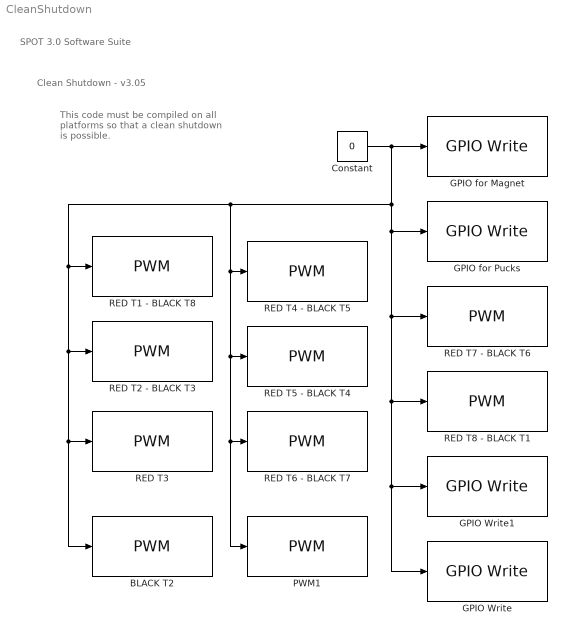
//
//  CleanShutdown.cpp
//
//  Academic License - for use in teaching, academic research, and meeting
//  course requirements at degree granting institutions only.  Not for
//  government, commercial, or other organizational use.
//
//  Code generation for model "CleanShutdown".
//
//  Model version              : 1.164
//  Simulink Coder version : 9.3 (R2020a) 18-Nov-2019
//  C++ source code generated on : Thu Mar 10 11:30:43 2022
//
//  Target selection: ert.tlc
//  Embedded hardware selection: ARM Compatible->ARM Cortex
//  Code generation objective: Execution efficiency
//  Validation result: Not run


#include "CleanShutdown.h"
#include "CleanShutdown_private.h"

// Block states (default storage)
DW_CleanShutdown_T CleanShutdown_DW;

// Real-time model
RT_MODEL_CleanShutdown_T CleanShutdown_M_ = RT_MODEL_CleanShutdown_T();
RT_MODEL_CleanShutdown_T *const CleanShutdown_M = &CleanShutdown_M_;

// Forward declaration for local functions
static void CleanShutdow_SystemCore_release(const
  raspi_internal_PWMBlock_Clean_T *obj);
static void CleanShutdown_SystemCore_delete(const
  raspi_internal_PWMBlock_Clean_T *obj);
static void matlabCodegenHandle_matlabCodeg(raspi_internal_PWMBlock_Clean_T *obj);
static void C_SystemCore_release_gx21kozvdu(const
  codertarget_linux_blocks_Digi_T *obj);
static void Cl_SystemCore_delete_gx21kozvdu(const
  codertarget_linux_blocks_Digi_T *obj);
static void matlabCodegenHandle__gx21kozvdu(codertarget_linux_blocks_Digi_T *obj);
static void SystemCore_release_gx21kozvdug(const codertarget_linux_blocks_Digi_T
  *obj);
static void C_SystemCore_delete_gx21kozvdug(const
  codertarget_linux_blocks_Digi_T *obj);
static void matlabCodegenHandle_gx21kozvdug(codertarget_linux_blocks_Digi_T *obj);
static void SystemCore_release_gx21kozvdugn(const
  codertarget_linux_blocks_Digi_T *obj);
static void SystemCore_delete_gx21kozvdugn(const codertarget_linux_blocks_Digi_T
  *obj);
static void matlabCodegenHandl_gx21kozvdugn(codertarget_linux_blocks_Digi_T *obj);
static void SystemCore_releas_gx21kozvdugn1(const
  codertarget_linux_blocks_Digi_T *obj);
static void SystemCore_delete_gx21kozvdugn1(const
  codertarget_linux_blocks_Digi_T *obj);
static void matlabCodegenHand_gx21kozvdugn1(codertarget_linux_blocks_Digi_T *obj);
real_T rt_roundd_snf(real_T u)
{
  real_T y;
  if (fabs(u) < 4.503599627370496E+15) {
    if (u >= 0.5) {
      y = floor(u + 0.5);
    } else if (u > -0.5) {
      y = u * 0.0;
    } else {
      y = ceil(u - 0.5);
    }
  } else {
    y = u;
  }

  return y;
}

static void CleanShutdow_SystemCore_release(const
  raspi_internal_PWMBlock_Clean_T *obj)
{
  if ((obj->isInitialized == 1) && obj->isSetupComplete) {
    EXT_PWMBlock_terminate(obj->PinNumber);
  }
}

static void CleanShutdown_SystemCore_delete(const
  raspi_internal_PWMBlock_Clean_T *obj)
{
  CleanShutdow_SystemCore_release(obj);
}

static void matlabCodegenHandle_matlabCodeg(raspi_internal_PWMBlock_Clean_T *obj)
{
  if (!obj->matlabCodegenIsDeleted) {
    obj->matlabCodegenIsDeleted = true;
    CleanShutdown_SystemCore_delete(obj);
  }
}

static void C_SystemCore_release_gx21kozvdu(const
  codertarget_linux_blocks_Digi_T *obj)
{
  if ((obj->isInitialized == 1) && obj->isSetupComplete) {
    MW_gpioTerminate(21U);
  }
}

static void Cl_SystemCore_delete_gx21kozvdu(const
  codertarget_linux_blocks_Digi_T *obj)
{
  C_SystemCore_release_gx21kozvdu(obj);
}

static void matlabCodegenHandle__gx21kozvdu(codertarget_linux_blocks_Digi_T *obj)
{
  if (!obj->matlabCodegenIsDeleted) {
    obj->matlabCodegenIsDeleted = true;
    Cl_SystemCore_delete_gx21kozvdu(obj);
  }
}

static void SystemCore_release_gx21kozvdug(const codertarget_linux_blocks_Digi_T
  *obj)
{
  if ((obj->isInitialized == 1) && obj->isSetupComplete) {
    MW_gpioTerminate(25U);
  }
}

static void C_SystemCore_delete_gx21kozvdug(const
  codertarget_linux_blocks_Digi_T *obj)
{
  SystemCore_release_gx21kozvdug(obj);
}

static void matlabCodegenHandle_gx21kozvdug(codertarget_linux_blocks_Digi_T *obj)
{
  if (!obj->matlabCodegenIsDeleted) {
    obj->matlabCodegenIsDeleted = true;
    C_SystemCore_delete_gx21kozvdug(obj);
  }
}

static void SystemCore_release_gx21kozvdugn(const
  codertarget_linux_blocks_Digi_T *obj)
{
  if ((obj->isInitialized == 1) && obj->isSetupComplete) {
    MW_gpioTerminate(10U);
  }
}

static void SystemCore_delete_gx21kozvdugn(const codertarget_linux_blocks_Digi_T
  *obj)
{
  SystemCore_release_gx21kozvdugn(obj);
}

static void matlabCodegenHandl_gx21kozvdugn(codertarget_linux_blocks_Digi_T *obj)
{
  if (!obj->matlabCodegenIsDeleted) {
    obj->matlabCodegenIsDeleted = true;
    SystemCore_delete_gx21kozvdugn(obj);
  }
}

static void SystemCore_releas_gx21kozvdugn1(const
  codertarget_linux_blocks_Digi_T *obj)
{
  if ((obj->isInitialized == 1) && obj->isSetupComplete) {
    MW_gpioTerminate(26U);
  }
}

static void SystemCore_delete_gx21kozvdugn1(const
  codertarget_linux_blocks_Digi_T *obj)
{
  SystemCore_releas_gx21kozvdugn1(obj);
}

static void matlabCodegenHand_gx21kozvdugn1(codertarget_linux_blocks_Digi_T *obj)
{
  if (!obj->matlabCodegenIsDeleted) {
    obj->matlabCodegenIsDeleted = true;
    SystemCore_delete_gx21kozvdugn1(obj);
  }
}

// Model step function
void CleanShutdown_step(void)
{
  real_T y;
  uint8_T tmp;

  // MATLABSystem: '<Root>/BLACK T2' incorporates:
  //   Constant: '<Root>/Constant'

  if (CleanShutdown_P.Constant_Value < 1.0) {
    y = CleanShutdown_P.Constant_Value;
  } else {
    y = 1.0;
  }

  if (!(y > 0.0)) {
    y = 0.0;
  }

  EXT_PWMBlock_setDutyCycle(CleanShutdown_DW.obj.PinNumber, y);

  // End of MATLABSystem: '<Root>/BLACK T2'

  // MATLABSystem: '<S1>/Digital Write' incorporates:
  //   Constant: '<Root>/Constant'
  //   MATLABSystem: '<S2>/Digital Write'
  //   MATLABSystem: '<S3>/Digital Write'
  //   MATLABSystem: '<S4>/Digital Write'

  y = rt_roundd_snf(CleanShutdown_P.Constant_Value);
  if (y < 256.0) {
    if (y >= 0.0) {
      tmp = static_cast<uint8_T>(y);
    } else {
      tmp = 0U;
    }
  } else {
    tmp = MAX_uint8_T;
  }

  MW_gpioWrite(21U, tmp);

  // End of MATLABSystem: '<S1>/Digital Write'

  // MATLABSystem: '<S2>/Digital Write'
  if (y < 256.0) {
    if (y >= 0.0) {
      tmp = static_cast<uint8_T>(y);
    } else {
      tmp = 0U;
    }
  } else {
    tmp = MAX_uint8_T;
  }

  MW_gpioWrite(25U, tmp);

  // MATLABSystem: '<S3>/Digital Write'
  if (y < 256.0) {
    if (y >= 0.0) {
      tmp = static_cast<uint8_T>(y);
    } else {
      tmp = 0U;
    }
  } else {
    tmp = MAX_uint8_T;
  }

  MW_gpioWrite(10U, tmp);

  // MATLABSystem: '<S4>/Digital Write'
  if (y < 256.0) {
    if (y >= 0.0) {
      tmp = static_cast<uint8_T>(y);
    } else {
      tmp = 0U;
    }
  } else {
    tmp = MAX_uint8_T;
  }

  MW_gpioWrite(26U, tmp);

  // MATLABSystem: '<Root>/PWM1' incorporates:
  //   Constant: '<Root>/Constant'

  if (CleanShutdown_P.Constant_Value < 1.0) {
    y = CleanShutdown_P.Constant_Value;
  } else {
    y = 1.0;
  }

  if (!(y > 0.0)) {
    y = 0.0;
  }

  EXT_PWMBlock_setDutyCycle(CleanShutdown_DW.obj_i.PinNumber, y);

  // End of MATLABSystem: '<Root>/PWM1'

  // MATLABSystem: '<Root>/RED T1 - BLACK T8' incorporates:
  //   Constant: '<Root>/Constant'

  if (CleanShutdown_P.Constant_Value < 1.0) {
    y = CleanShutdown_P.Constant_Value;
  } else {
    y = 1.0;
  }

  if (!(y > 0.0)) {
    y = 0.0;
  }

  EXT_PWMBlock_setDutyCycle(CleanShutdown_DW.obj_e.PinNumber, y);

  // End of MATLABSystem: '<Root>/RED T1 - BLACK T8'

  // MATLABSystem: '<Root>/RED T2 - BLACK T3' incorporates:
  //   Constant: '<Root>/Constant'

  if (CleanShutdown_P.Constant_Value < 1.0) {
    y = CleanShutdown_P.Constant_Value;
  } else {
    y = 1.0;
  }

  if (!(y > 0.0)) {
    y = 0.0;
  }

  EXT_PWMBlock_setDutyCycle(CleanShutdown_DW.obj_i5.PinNumber, y);

  // End of MATLABSystem: '<Root>/RED T2 - BLACK T3'

  // MATLABSystem: '<Root>/RED T3' incorporates:
  //   Constant: '<Root>/Constant'

  if (CleanShutdown_P.Constant_Value < 1.0) {
    y = CleanShutdown_P.Constant_Value;
  } else {
    y = 1.0;
  }

  if (!(y > 0.0)) {
    y = 0.0;
  }

  EXT_PWMBlock_setDutyCycle(CleanShutdown_DW.obj_b.PinNumber, y);

  // End of MATLABSystem: '<Root>/RED T3'

  // MATLABSystem: '<Root>/RED T4 - BLACK T5' incorporates:
  //   Constant: '<Root>/Constant'

  if (CleanShutdown_P.Constant_Value < 1.0) {
    y = CleanShutdown_P.Constant_Value;
  } else {
    y = 1.0;
  }

  if (!(y > 0.0)) {
    y = 0.0;
  }

  EXT_PWMBlock_setDutyCycle(CleanShutdown_DW.obj_d.PinNumber, y);

  // End of MATLABSystem: '<Root>/RED T4 - BLACK T5'

  // MATLABSystem: '<Root>/RED T5 - BLACK T4' incorporates:
  //   Constant: '<Root>/Constant'

  if (CleanShutdown_P.Constant_Value < 1.0) {
    y = CleanShutdown_P.Constant_Value;
  } else {
    y = 1.0;
  }

  if (!(y > 0.0)) {
    y = 0.0;
  }

  EXT_PWMBlock_setDutyCycle(CleanShutdown_DW.obj_f.PinNumber, y);

  // End of MATLABSystem: '<Root>/RED T5 - BLACK T4'

  // MATLABSystem: '<Root>/RED T6 - BLACK T7' incorporates:
  //   Constant: '<Root>/Constant'

  if (CleanShutdown_P.Constant_Value < 1.0) {
    y = CleanShutdown_P.Constant_Value;
  } else {
    y = 1.0;
  }

  if (!(y > 0.0)) {
    y = 0.0;
  }

  EXT_PWMBlock_setDutyCycle(CleanShutdown_DW.obj_o.PinNumber, y);

  // End of MATLABSystem: '<Root>/RED T6 - BLACK T7'

  // MATLABSystem: '<Root>/RED T7 - BLACK T6' incorporates:
  //   Constant: '<Root>/Constant'

  if (CleanShutdown_P.Constant_Value < 1.0) {
    y = CleanShutdown_P.Constant_Value;
  } else {
    y = 1.0;
  }

  if (!(y > 0.0)) {
    y = 0.0;
  }

  EXT_PWMBlock_setDutyCycle(CleanShutdown_DW.obj_l.PinNumber, y);

  // End of MATLABSystem: '<Root>/RED T7 - BLACK T6'

  // MATLABSystem: '<Root>/RED T8 - BLACK T1' incorporates:
  //   Constant: '<Root>/Constant'

  if (CleanShutdown_P.Constant_Value < 1.0) {
    y = CleanShutdown_P.Constant_Value;
  } else {
    y = 1.0;
  }

  if (!(y > 0.0)) {
    y = 0.0;
  }

  EXT_PWMBlock_setDutyCycle(CleanShutdown_DW.obj_k.PinNumber, y);

  // End of MATLABSystem: '<Root>/RED T8 - BLACK T1'
}
